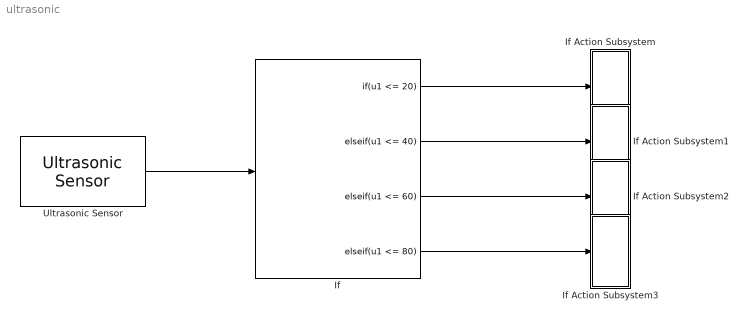
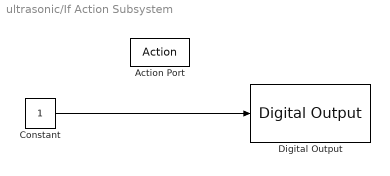
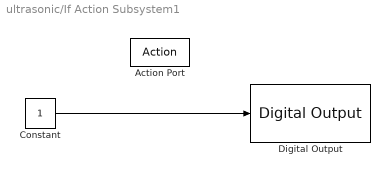
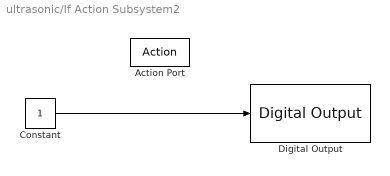
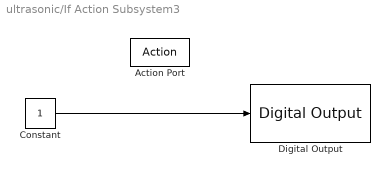
/*
 * File: ultrasonic.c
 *
 * Code generated for Simulink model 'ultrasonic'.
 *
 * Model version                  : 1.4
 * Simulink Coder version         : 9.8 (R2022b) 13-May-2022
 * C/C++ source code generated on : Thu Mar 28 16:34:52 2024
 *
 * Target selection: ert.tlc
 * Embedded hardware selection: Atmel->AVR
 * Code generation objectives: Unspecified
 * Validation result: Not run
 */

#include "ultrasonic.h"
#include "rtwtypes.h"
#include "ultrasonic_private.h"
#include <math.h>

/* Block states (default storage) */
DW_ultrasonic_T ultrasonic_DW;

/* Real-time model */
static RT_MODEL_ultrasonic_T ultrasonic_M_;
RT_MODEL_ultrasonic_T *const ultrasonic_M = &ultrasonic_M_;
static void rate_monotonic_scheduler(void);

/*
 * Set which subrates need to run this base step (base rate always runs).
 * This function must be called prior to calling the model step function
 * in order to remember which rates need to run this base step.  The
 * buffering of events allows for overlapping preemption.
 */
void ultrasonic_SetEventsForThisBaseStep(boolean_T *eventFlags)
{
  /* Task runs when its counter is zero, computed via rtmStepTask macro */
  eventFlags[1] = ((boolean_T)rtmStepTask(ultrasonic_M, 1));
}

/*
 *         This function updates active task flag for each subrate
 *         and rate transition flags for tasks that exchange data.
 *         The function assumes rate-monotonic multitasking scheduler.
 *         The function must be called at model base rate so that
 *         the generated code self-manages all its subrates and rate
 *         transition flags.
 */
static void rate_monotonic_scheduler(void)
{
  /* Compute which subrates run during the next base time step.  Subrates
   * are an integer multiple of the base rate counter.  Therefore, the subtask
   * counter is reset when it reaches its limit (zero means run).
   */
  (ultrasonic_M->Timing.TaskCounters.TID[1])++;
  if ((ultrasonic_M->Timing.TaskCounters.TID[1]) > 99) {/* Sample time: [0.1s, 0.0s] */
    ultrasonic_M->Timing.TaskCounters.TID[1] = 0;
  }
}

real_T rt_roundd_snf(real_T u)
{
  real_T y;
  if (fabs(u) < 4.503599627370496E+15) {
    if (u >= 0.5) {
      y = floor(u + 0.5);
    } else if (u > -0.5) {
      y = u * 0.0;
    } else {
      y = ceil(u - 0.5);
    }
  } else {
    y = u;
  }

  return y;
}

/* Model step function for TID0 */
void ultrasonic_step0(void)            /* Sample time: [0.001s, 0.0s] */
{
  {                                    /* Sample time: [0.001s, 0.0s] */
    rate_monotonic_scheduler();
  }
}

/* Model step function for TID1 */
void ultrasonic_step1(void)            /* Sample time: [0.1s, 0.0s] */
{
  real_T rtb_UltrasonicSensor;
  uint32_T duration;
  uint8_T tmp;

  /* MATLABSystem: '<Root>/Ultrasonic Sensor' */
  if (ultrasonic_DW.obj_i.TunablePropsChanged) {
    ultrasonic_DW.obj_i.TunablePropsChanged = false;
  }

  MW_UltrasonicRead(&duration, 0, 3, 3, 5);
  rtb_UltrasonicSensor = (real_T)duration * 0.000343 / 2.0;

  /* End of MATLABSystem: '<Root>/Ultrasonic Sensor' */

  /* If: '<Root>/If' */
  if (rtb_UltrasonicSensor <= 20.0) {
    /* Outputs for IfAction SubSystem: '<Root>/If Action Subsystem' incorporates:
     *  ActionPort: '<S1>/Action Port'
     */
    /* MATLABSystem: '<S1>/Digital Output' incorporates:
     *  Constant: '<S1>/Constant'
     */
    rtb_UltrasonicSensor = rt_roundd_snf(ultrasonic_P.Constant_Value);
    if (rtb_UltrasonicSensor < 256.0) {
      if (rtb_UltrasonicSensor >= 0.0) {
        tmp = (uint8_T)rtb_UltrasonicSensor;
      } else {
        tmp = 0U;
      }
    } else {
      tmp = MAX_uint8_T;
    }

    writeDigitalPin(9, tmp);

    /* End of MATLABSystem: '<S1>/Digital Output' */
    /* End of Outputs for SubSystem: '<Root>/If Action Subsystem' */
  } else if (rtb_UltrasonicSensor <= 40.0) {
    /* Outputs for IfAction SubSystem: '<Root>/If Action Subsystem1' incorporates:
     *  ActionPort: '<S2>/Action Port'
     */
    /* MATLABSystem: '<S2>/Digital Output' incorporates:
     *  Constant: '<S2>/Constant'
     */
    rtb_UltrasonicSensor = rt_roundd_snf(ultrasonic_P.Constant_Value_f);
    if (rtb_UltrasonicSensor < 256.0) {
      if (rtb_UltrasonicSensor >= 0.0) {
        tmp = (uint8_T)rtb_UltrasonicSensor;
      } else {
        tmp = 0U;
      }
    } else {
      tmp = MAX_uint8_T;
    }

    writeDigitalPin(10, tmp);

    /* End of MATLABSystem: '<S2>/Digital Output' */
    /* End of Outputs for SubSystem: '<Root>/If Action Subsystem1' */
  } else if (rtb_UltrasonicSensor <= 60.0) {
    /* Outputs for IfAction SubSystem: '<Root>/If Action Subsystem2' incorporates:
     *  ActionPort: '<S3>/Action Port'
     */
    /* MATLABSystem: '<S3>/Digital Output' incorporates:
     *  Constant: '<S3>/Constant'
     */
    rtb_UltrasonicSensor = rt_roundd_snf(ultrasonic_P.Constant_Value_ff);
    if (rtb_UltrasonicSensor < 256.0) {
      if (rtb_UltrasonicSensor >= 0.0) {
        tmp = (uint8_T)rtb_UltrasonicSensor;
      } else {
        tmp = 0U;
      }
    } else {
      tmp = MAX_uint8_T;
    }

    writeDigitalPin(11, tmp);

    /* End of MATLABSystem: '<S3>/Digital Output' */
    /* End of Outputs for SubSystem: '<Root>/If Action Subsystem2' */
  } else if (rtb_UltrasonicSensor <= 80.0) {
    /* Outputs for IfAction SubSystem: '<Root>/If Action Subsystem3' incorporates:
     *  ActionPort: '<S4>/Action Port'
     */
    /* MATLABSystem: '<S4>/Digital Output' incorporates:
     *  Constant: '<S4>/Constant'
     */
    rtb_UltrasonicSensor = rt_roundd_snf(ultrasonic_P.Constant_Value_d);
    if (rtb_UltrasonicSensor < 256.0) {
      if (rtb_UltrasonicSensor >= 0.0) {
        tmp = (uint8_T)rtb_UltrasonicSensor;
      } else {
        tmp = 0U;
      }
    } else {
      tmp = MAX_uint8_T;
    }

    writeDigitalPin(12, tmp);

    /* End of MATLABSystem: '<S4>/Digital Output' */
    /* End of Outputs for SubSystem: '<Root>/If Action Subsystem3' */
  }

  /* End of If: '<Root>/If' */
}
